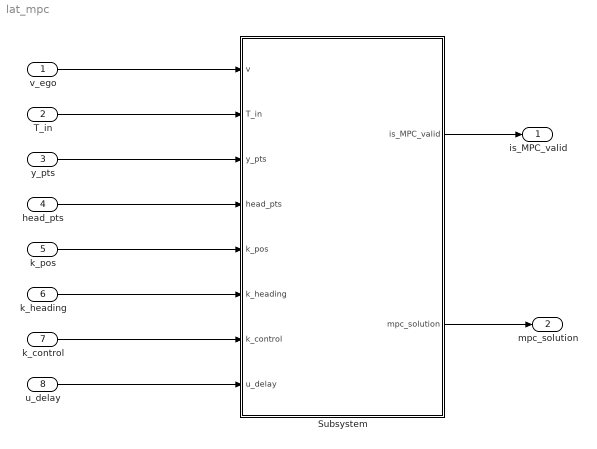
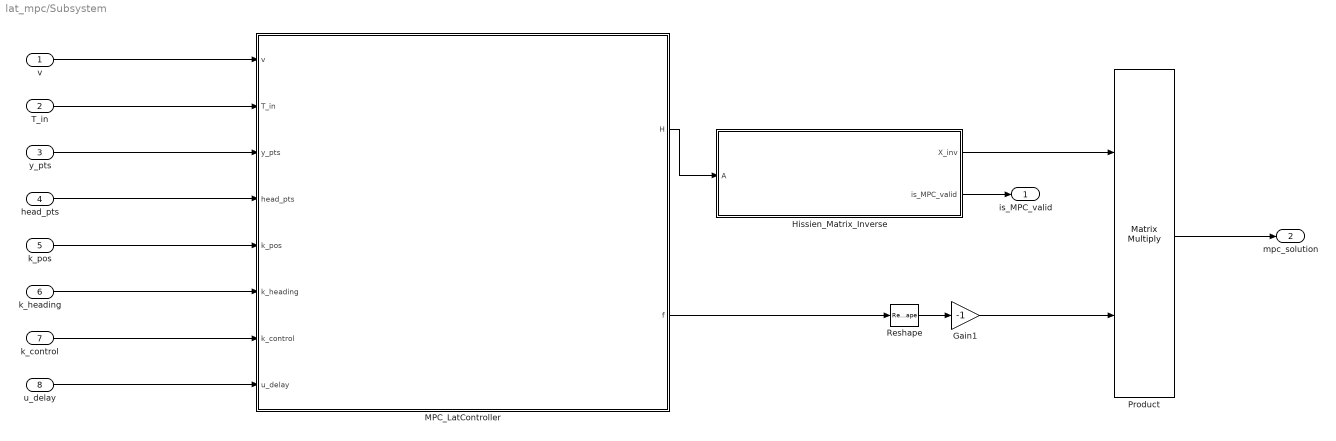
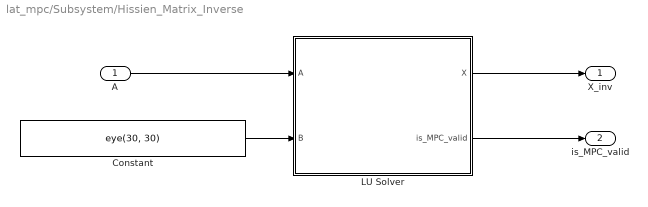
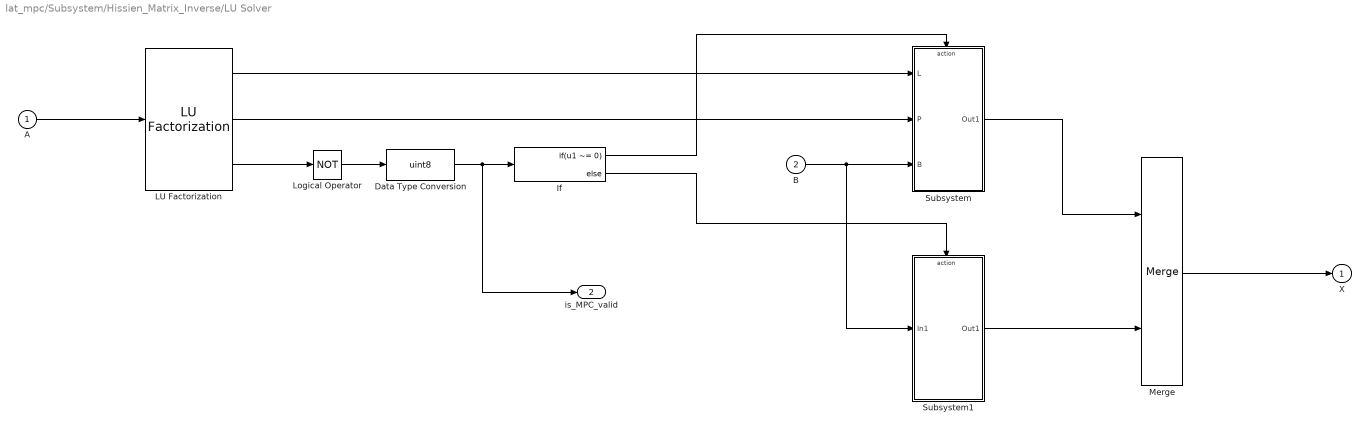
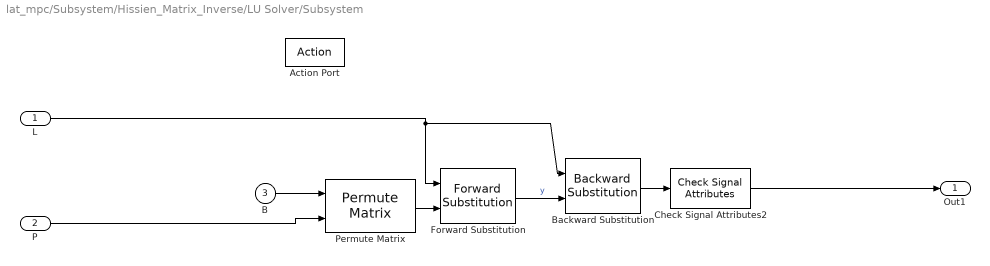
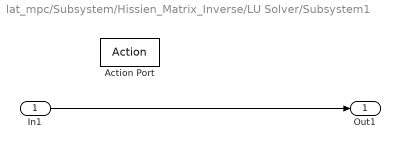
== matlab function lat_mpc/Subsystem/MPC_LatController ==
function [H, f] = fcn(v, T_in, y_pts, head_pts, k_pos, k_heading, k_control, u_delay)

%% define controller parameters
p = 30;  % mpc predicted steps 
state_len = 3; % number of states


%% matrix initialization
% Q, R weight matrix 
Q = single(zeros(state_len*p, state_len*p)); 
R = single(k_control*eye(p)); 

% state transition matrix
A = single(zeros(3,3));
B = single(zeros(3,1));
A_ = single(zeros(3,3));
B_ = single(zeros(3,1));
A_set = single(zeros(p, 3, 3));
B_set = single(zeros(p, 3, 1));

% middle layer matrix
M = single(zeros(state_len*p, state_len));
K = single(zeros(state_len*p, p));

% reference desired state 
X_ref = single(zeros(state_len*p, 1));
yawrate_ref = single(zeros(p,1));
theta_ref = single(zeros(p,1));
y_ref = single(zeros(p, 1));

% QP solver matrix
H = single(zeros(p, p));
f = single(zeros(p, 1));

%% time array caculation
T =  T_in;

% referce x array
x_ref = v.*T;

%% intial states
x = single([0; 0; u_delay]); 


%% caculate X_ref, give the value for Q,R
% control input is delta of omiga
% matrix X_
%           |  y      | 
% X_ =	    |  theta  | 
%           |  omiga  | 

% matrix A_
%           |1    v*cos(theta)   0 | 
% A_ =	    |0    1             Ts | 
%           |0    0              1 | 

% matrix B_
%           |  0  | 
% B_ =	    |  0  | 
%           |  1  | 

% if X(k+1) = A*X(k) + B*u
% |X(k+1)|  | A   B | |X(k)|   |0|
%         =          *       + |0| * delta(u)
% |u(k+1)|  | 0   1 | |u(k)|   |1|

for i=1:p
    if i==1
        Ts = T(1);
    else
        Ts = T(i) - T(i-1);
    end

    % reference state
    x_tmp = x_ref(i);
    y_ref(i) = y_pts(i);
    theta_ref(i) = head_pts(i) ;
    yawrate_ref(i) = 0;
    X_ref((i-1)*state_len + 1:state_len*i, 1) = [y_ref(i) theta_ref(i) yawrate_ref(i) ];    
    
    % update A_, B_ set
    A_ = single([1 v*cos(theta_ref(i))*Ts; 0 1]);
    B_ = single([0 ; Ts]);

    A_set(i,:,:) = single([A_ B_; 0 0 1]);
    B_set(i,:,:) = single([0; 0 ;1]);
    
    % update Q weight matrix
    Q((i-1)*state_len + 1:state_len*i,  (i-1)*state_len + 1:state_len*i) = single([k_pos 0 0; 0 k_heading 0; 0 0 0]);

end

%% caculate M, K matrix
tmp_1 = single(eye(3));
tmp_2 = single(eye(3));

% M matrix update
% |  A1
% |  A2A1
% |  A3A2A1
% ..........

% K matrix update
% |0 0 0 ... 0            0         B1|
% |0 0 0 ... 0            A2B1  B2|
% |0 0 0 ... A3A2B1 A3B2  B3|
for i=1:p
   tmp_1 = reshape(A_set(i,:,:), [3 3])*tmp_1;
   M((i-1)*state_len + 1:state_len*i, 1:state_len) = tmp_1;

      for j=i:-1:1
        if j==i
            tmp_2 = single(eye(3));
        else
            tmp_2 = tmp_2*reshape(A_set(j+1,:,:), [3 3]);
        end
       K((i-1)*state_len + 1:state_len*i, j) = tmp_2*reshape(B_set(j,:,:), [3 1]);

      end
   
      
end

%% caculate H, f matrix for QP solver
X_pre = M*x;
E = X_pre - X_ref;

H = 2*(K'*Q*K + R);
f = (2*E'*Q*K)';

end

function prv_yawrate = preview_yawrate_calc(C1, C2, C3,C4, C5, d, v)
    ddy = 2*C2 + 6*C3*d + 12*C4*d^2 + 20*C5*d^3;
    
    dy = C1 + 2*C2*d + 3*C3*d^2+ 4*C4*d^3 +5*C5*d^4  ;
    
    prv_curve = ddy/((1+dy^2)^1.5);
    
    prv_yawrate = prv_curve * v;

end

/*
 * File: lat_mpc.c
 *
 * Code generated for Simulink model 'lat_mpc'.
 *
 * Model version                  : 1.4
 * Simulink Coder version         : 9.4 (R2020b) 29-Jul-2020
 * C/C++ source code generated on : Wed Jul 13 11:30:10 2022
 *
 * Target selection: ert.tlc
 * Embedded hardware selection: Intel->x86-64 (Windows64)
 * Code generation objectives: Unspecified
 * Validation result: Not run
 */

#include "lat_mpc.h"
#include "lat_mpc_private.h"

/* Block signals (default storage) */
B_lat_mpc_T lat_mpc_B;

/* Real-time model */
static RT_MODEL_lat_mpc_T lat_mpc_M_;
RT_MODEL_lat_mpc_T *const lat_mpc_M = &lat_mpc_M_;
void LUf_boolean_Tint32_Treal32_T(real32_T outU[], real32_T outP[], int32_T N,
  boolean_T outS[])
{
  int32_T c;
  int32_T idx1;
  int32_T idx1_tmp;
  int32_T k;
  int32_T p;
  int32_T r;
  int32_T tmp;
  real32_T mTmp1;
  real32_T mTmp2;

  /* S-Function (sdsplu2): '<S4>/LU Factorization' */
  /* initialize status output */
  outS[0U] = false;

  /* initialize row-pivot indices */
  for (k = 0; k < N; k++) {
    outP[k] = (real32_T)(k + 1);
  }

  for (k = 0; k < N; k++) {
    p = k;

    /* Scan the lower triangular part of this column only. */
    /* Record row of largest value */
    idx1_tmp = k * N;
    mTmp1 = outU[idx1_tmp + k];
    if (mTmp1 < 0.0F) {
      mTmp1 = -mTmp1;
    }

    for (r = k + 1; r < N; r++) {
      mTmp2 = outU[idx1_tmp + r];
      if (mTmp2 < 0.0F) {
        mTmp2 = -mTmp2;
      }

      if (mTmp2 > mTmp1) {
        p = r;
        mTmp1 = mTmp2;
      }
    }

    /* swap rows if required */
    if (p != k) {
      for (c = 0; c < N; c++) {
        idx1 = c * N;
        r = idx1 + p;
        mTmp1 = outU[r];
        tmp = idx1 + k;
        outU[r] = outU[tmp];
        outU[tmp] = mTmp1;
      }

      /* swap pivot row indices */
      mTmp1 = outP[p];
      outP[p] = outP[k];
      outP[k] = mTmp1;
    }

    idx1 = k * N + k;
    if (outU[idx1] == 0.0F) {
      outS[0U] = true;
    } else {
      for (r = k + 1; r < N; r++) {
        tmp = idx1_tmp + r;
        outU[tmp] /= outU[idx1];
      }

      for (c = k + 1; c < N; c++) {
        idx1 = c * N;
        for (r = k + 1; r < N; r++) {
          tmp = idx1 + r;
          outU[tmp] -= outU[idx1_tmp + r] * outU[idx1 + k];
        }
      }
    }
  }

  /* End of S-Function (sdsplu2): '<S4>/LU Factorization' */
}

/* Model step function */
void lat_mpc_step(real32_T arg_v_ego, real32_T arg_T_in[30], real32_T arg_y_pts
                  [30], real32_T arg_head_pts[30], real32_T arg_k_pos, real32_T
                  arg_k_heading, real32_T arg_k_control, real32_T arg_u_delay,
                  uint8_T *arg_is_MPC_valid, real32_T arg_mpc_solution[30])
{
  static const int8_T ab[900] = { 1, 0, 0, 0, 0, 0, 0, 0, 0, 0, 0, 0, 0, 0, 0, 0,
    0, 0, 0, 0, 0, 0, 0, 0, 0, 0, 0, 0, 0, 0, 0, 1, 0, 0, 0, 0, 0, 0, 0, 0, 0, 0,
    0, 0, 0, 0, 0, 0, 0, 0, 0, 0, 0, 0, 0, 0, 0, 0, 0, 0, 0, 0, 1, 0, 0, 0, 0, 0,
    0, 0, 0, 0, 0, 0, 0, 0, 0, 0, 0, 0, 0, 0, 0, 0, 0, 0, 0, 0, 0, 0, 0, 0, 0, 1,
    0, 0, 0, 0, 0, 0, 0, 0, 0, 0, 0, 0, 0, 0, 0, 0, 0, 0, 0, 0, 0, 0, 0, 0, 0, 0,
    0, 0, 0, 0, 1, 0, 0, 0, 0, 0, 0, 0, 0, 0, 0, 0, 0, 0, 0, 0, 0, 0, 0, 0, 0, 0,
    0, 0, 0, 0, 0, 0, 0, 0, 0, 1, 0, 0, 0, 0, 0, 0, 0, 0, 0, 0, 0, 0, 0, 0, 0, 0,
    0, 0, 0, 0, 0, 0, 0, 0, 0, 0, 0, 0, 0, 0, 1, 0, 0, 0, 0, 0, 0, 0, 0, 0, 0, 0,
    0, 0, 0, 0, 0, 0, 0, 0, 0, 0, 0, 0, 0, 0, 0, 0, 0, 0, 0, 1, 0, 0, 0, 0, 0, 0,
    0, 0, 0, 0, 0, 0, 0, 0, 0, 0, 0, 0, 0, 0, 0, 0, 0, 0, 0, 0, 0, 0, 0, 0, 1, 0,
    0, 0, 0, 0, 0, 0, 0, 0, 0, 0, 0, 0, 0, 0, 0, 0, 0, 0, 0, 0, 0, 0, 0, 0, 0, 0,
    0, 0, 0, 1, 0, 0, 0, 0, 0, 0, 0, 0, 0, 0, 0, 0, 0, 0, 0, 0, 0, 0, 0, 0, 0, 0,
    0, 0, 0, 0, 0, 0, 0, 0, 1, 0, 0, 0, 0, 0, 0, 0, 0, 0, 0, 0, 0, 0, 0, 0, 0, 0,
    0, 0, 0, 0, 0, 0, 0, 0, 0, 0, 0, 0, 0, 1, 0, 0, 0, 0, 0, 0, 0, 0, 0, 0, 0, 0,
    0, 0, 0, 0, 0, 0, 0, 0, 0, 0, 0, 0, 0, 0, 0, 0, 0, 0, 1, 0, 0, 0, 0, 0, 0, 0,
    0, 0, 0, 0, 0, 0, 0, 0, 0, 0, 0, 0, 0, 0, 0, 0, 0, 0, 0, 0, 0, 0, 0, 1, 0, 0,
    0, 0, 0, 0, 0, 0, 0, 0, 0, 0, 0, 0, 0, 0, 0, 0, 0, 0, 0, 0, 0, 0, 0, 0, 0, 0,
    0, 0, 1, 0, 0, 0, 0, 0, 0, 0, 0, 0, 0, 0, 0, 0, 0, 0, 0, 0, 0, 0, 0, 0, 0, 0,
    0, 0, 0, 0, 0, 0, 0, 1, 0, 0, 0, 0, 0, 0, 0, 0, 0, 0, 0, 0, 0, 0, 0, 0, 0, 0,
    0, 0, 0, 0, 0, 0, 0, 0, 0, 0, 0, 0, 1, 0, 0, 0, 0, 0, 0, 0, 0, 0, 0, 0, 0, 0,
    0, 0, 0, 0, 0, 0, 0, 0, 0, 0, 0, 0, 0, 0, 0, 0, 0, 1, 0, 0, 0, 0, 0, 0, 0, 0,
    0, 0, 0, 0, 0, 0, 0, 0, 0, 0, 0, 0, 0, 0, 0, 0, 0, 0, 0, 0, 0, 0, 1, 0, 0, 0,
    0, 0, 0, 0, 0, 0, 0, 0, 0, 0, 0, 0, 0, 0, 0, 0, 0, 0, 0, 0, 0, 0, 0, 0, 0, 0,
    0, 1, 0, 0, 0, 0, 0, 0, 0, 0, 0, 0, 0, 0, 0, 0, 0, 0, 0, 0, 0, 0, 0, 0, 0, 0,
    0, 0, 0, 0, 0, 0, 1, 0, 0, 0, 0, 0, 0, 0, 0, 0, 0, 0, 0, 0, 0, 0, 0, 0, 0, 0,
    0, 0, 0, 0, 0, 0, 0, 0, 0, 0, 0, 1, 0, 0, 0, 0, 0, 0, 0, 0, 0, 0, 0, 0, 0, 0,
    0, 0, 0, 0, 0, 0, 0, 0, 0, 0, 0, 0, 0, 0, 0, 0, 1, 0, 0, 0, 0, 0, 0, 0, 0, 0,
    0, 0, 0, 0, 0, 0, 0, 0, 0, 0, 0, 0, 0, 0, 0, 0, 0, 0, 0, 0, 0, 1, 0, 0, 0, 0,
    0, 0, 0, 0, 0, 0, 0, 0, 0, 0, 0, 0, 0, 0, 0, 0, 0, 0, 0, 0, 0, 0, 0, 0, 0, 0,
    1, 0, 0, 0, 0, 0, 0, 0, 0, 0, 0, 0, 0, 0, 0, 0, 0, 0, 0, 0, 0, 0, 0, 0, 0, 0,
    0, 0, 0, 0, 0, 1, 0, 0, 0, 0, 0, 0, 0, 0, 0, 0, 0, 0, 0, 0, 0, 0, 0, 0, 0, 0,
    0, 0, 0, 0, 0, 0, 0, 0, 0, 0, 1, 0, 0, 0, 0, 0, 0, 0, 0, 0, 0, 0, 0, 0, 0, 0,
    0, 0, 0, 0, 0, 0, 0, 0, 0, 0, 0, 0, 0, 0, 0, 1, 0, 0, 0, 0, 0, 0, 0, 0, 0, 0,
    0, 0, 0, 0, 0, 0, 0, 0, 0, 0, 0, 0, 0, 0, 0, 0, 0, 0, 0, 0, 1, 0, 0, 0, 0, 0,
    0, 0, 0, 0, 0, 0, 0, 0, 0, 0, 0, 0, 0, 0, 0, 0, 0, 0, 0, 0, 0, 0, 0, 0, 0, 1
  };

  static const int8_T y[3] = { 0, 0, 1 };

  int32_T g_tmp;
  int32_T h_tmp;
  int32_T i;
  int32_T k;
  int32_T l;
  int32_T loop_ub;
  int32_T loop_ub_0;
  int32_T p;
  int32_T s_idx_1;
  int32_T tmp_2_tmp;
  real32_T K[900];
  real32_T rtb_BackwardSubstitution[900];
  real32_T rtb_LUFactorization_o1[900];
  real32_T A_set[270];
  real32_T M[270];
  real32_T X_ref[90];
  real32_T tmp[90];
  real32_T rtb_LUFactorization_o2[30];
  real32_T A_set_0[9];
  real32_T tmp_1[9];
  real32_T tmp_2[9];
  real32_T y_ref[3];
  real32_T tmp_data[2];
  real32_T Ts;
  real32_T theta_ref;
  int8_T B_set[90];
  int8_T b_I[9];
  boolean_T rtb_LogicalOperator;

  /* MATLAB Function: '<S1>/MPC_LatController' incorporates:
   *  Inport: '<Root>/T_in'
   *  Inport: '<Root>/head_pts'
   *  Inport: '<Root>/k_control'
   *  Inport: '<Root>/k_heading'
   *  Inport: '<Root>/k_pos'
   *  Inport: '<Root>/v_ego'
   *  Inport: '<Root>/y_pts'
   */
  memset(&lat_mpc_B.Q[0], 0, 8100U * sizeof(real32_T));
  memset(&M[0], 0, 270U * sizeof(real32_T));
  memset(&lat_mpc_B.K[0], 0, 2700U * sizeof(real32_T));
  memset(&X_ref[0], 0, 90U * sizeof(real32_T));
  y_ref[2] = 0.0F;
  tmp_data[0] = 0.0F;
  tmp_1[0] = arg_k_pos;
  tmp_1[3] = 0.0F;
  tmp_1[6] = 0.0F;
  tmp_1[1] = 0.0F;
  tmp_1[4] = arg_k_heading;
  tmp_1[7] = 0.0F;
  tmp_1[2] = 0.0F;
  tmp_1[5] = 0.0F;
  tmp_1[8] = 0.0F;
  for (i = 0; i < 30; i++) {
    if (i + 1 == 1) {
      Ts = arg_T_in[0];
    } else {
      Ts = arg_T_in[i] - arg_T_in[i - 1];
    }

    theta_ref = arg_head_pts[i];
    g_tmp = i * 3;
    h_tmp = (i + 1) * 3;
    if (g_tmp + 1 > h_tmp) {
      l = 0;
      k = 0;
    } else {
      l = g_tmp;
      k = h_tmp;
    }

    y_ref[0] = arg_y_pts[i];
    y_ref[1] = theta_ref;
    loop_ub = k - l;
    for (k = 0; k < loop_ub; k++) {
      X_ref[l + k] = y_ref[k];
    }

    tmp_data[1] = Ts;
    tmp_2[0] = 1.0F;
    tmp_2[3] = arg_v_ego * cosf(theta_ref) * Ts;
    tmp_2[1] = 0.0F;
    tmp_2[4] = 1.0F;
    for (k = 0; k < 2; k++) {
      tmp_2[k + 6] = tmp_data[k];
    }

    tmp_2[2] = 0.0F;
    tmp_2[5] = 0.0F;
    tmp_2[8] = 1.0F;
    for (k = 0; k < 3; k++) {
      l = i + 90 * k;
      A_set[l] = tmp_2[3 * k];
      A_set[l + 30] = tmp_2[3 * k + 1];
      A_set[l + 60] = tmp_2[3 * k + 2];
      B_set[i + 30 * k] = y[k];
    }

    if (g_tmp + 1 > h_tmp) {
      l = 0;
      k = 0;
      g_tmp = 0;
      h_tmp = 0;
    } else {
      l = g_tmp;
      k = h_tmp;
    }

    loop_ub = k - l;
    s_idx_1 = h_tmp - g_tmp;
    for (k = 0; k < s_idx_1; k++) {
      for (h_tmp = 0; h_tmp < loop_ub; h_tmp++) {
        lat_mpc_B.Q[(l + h_tmp) + 90 * (g_tmp + k)] = tmp_1[loop_ub * k + h_tmp];
      }
    }
  }

  for (k = 0; k < 9; k++) {
    b_I[k] = 0;
  }

  b_I[0] = 1;
  b_I[4] = 1;
  b_I[8] = 1;
  for (k = 0; k < 9; k++) {
    tmp_1[k] = b_I[k];
    b_I[k] = 0;
  }

  b_I[0] = 1;
  b_I[4] = 1;
  b_I[8] = 1;
  for (k = 0; k < 9; k++) {
    tmp_2[k] = b_I[k];
  }

  for (i = 0; i < 30; i++) {
    for (k = 0; k < 3; k++) {
      for (h_tmp = 0; h_tmp < 3; h_tmp++) {
        l = k + 3 * h_tmp;
        A_set_0[l] = 0.0F;
        g_tmp = 30 * k + i;
        A_set_0[l] += A_set[g_tmp] * tmp_1[3 * h_tmp];
        A_set_0[l] += A_set[g_tmp + 90] * tmp_1[3 * h_tmp + 1];
        A_set_0[l] += A_set[g_tmp + 180] * tmp_1[3 * h_tmp + 2];
      }
    }

    for (k = 0; k < 9; k++) {
      tmp_1[k] = A_set_0[k];
    }

    g_tmp = i * 3;
    loop_ub = (i + 1) * 3;
    if (g_tmp + 1 > loop_ub) {
      l = 0;
      k = 0;
    } else {
      l = g_tmp;
      k = loop_ub;
    }

    s_idx_1 = k - l;
    for (k = 0; k < 3; k++) {
      for (h_tmp = 0; h_tmp < s_idx_1; h_tmp++) {
        M[(l + h_tmp) + 90 * k] = tmp_1[s_idx_1 * k + h_tmp];
      }
    }

    l = (int32_T)(((-1.0 - ((real_T)i + 1.0)) + 1.0) / -1.0);
    if (0 <= l - 1) {
      if (g_tmp + 1 > loop_ub) {
        p = 0;
        loop_ub = 0;
      } else {
        p = g_tmp;
      }

      loop_ub_0 = loop_ub - p;
    }

    for (loop_ub = 0; loop_ub < l; loop_ub++) {
      g_tmp = (i - loop_ub) + 1;
      if (i + 1 == g_tmp) {
        for (k = 0; k < 9; k++) {
          b_I[k] = 0;
        }

        b_I[0] = 1;
        b_I[4] = 1;
        b_I[8] = 1;
        for (k = 0; k < 9; k++) {
          tmp_2[k] = b_I[k];
        }
      } else {
        for (k = 0; k < 3; k++) {
          for (h_tmp = 0; h_tmp < 3; h_tmp++) {
            s_idx_1 = k + 3 * h_tmp;
            A_set_0[s_idx_1] = 0.0F;
            tmp_2_tmp = 90 * h_tmp + g_tmp;
            A_set_0[s_idx_1] += A_set[tmp_2_tmp] * tmp_2[k];
            A_set_0[s_idx_1] += A_set[tmp_2_tmp + 30] * tmp_2[k + 3];
            A_set_0[s_idx_1] += A_set[tmp_2_tmp + 60] * tmp_2[k + 6];
          }
        }

        for (k = 0; k < 9; k++) {
          tmp_2[k] = A_set_0[k];
        }
      }

      for (k = 0; k < 3; k++) {
        y_ref[k] = tmp_2[k + 6] * (real32_T)B_set[g_tmp + 59] + (tmp_2[k + 3] *
          (real32_T)B_set[g_tmp + 29] + (real32_T)B_set[g_tmp - 1] * tmp_2[k]);
      }

      for (k = 0; k < loop_ub_0; k++) {
        lat_mpc_B.K[(p + k) + 90 * (g_tmp - 1)] = y_ref[k];
      }
    }
  }

  for (k = 0; k < 30; k++) {
    for (h_tmp = 0; h_tmp < 90; h_tmp++) {
      p = k + 30 * h_tmp;
      lat_mpc_B.K_m[p] = 0.0F;
      for (loop_ub_0 = 0; loop_ub_0 < 90; loop_ub_0++) {
        lat_mpc_B.K_m[p] += lat_mpc_B.K[90 * k + loop_ub_0] * lat_mpc_B.Q[90 *
          h_tmp + loop_ub_0];
      }
    }

    for (h_tmp = 0; h_tmp < 30; h_tmp++) {
      Ts = 0.0F;
      for (loop_ub_0 = 0; loop_ub_0 < 90; loop_ub_0++) {
        Ts += lat_mpc_B.K_m[30 * loop_ub_0 + k] * lat_mpc_B.K[90 * h_tmp +
          loop_ub_0];
      }

      p = 30 * h_tmp + k;
      K[p] = (real32_T)ab[p] * arg_k_control + Ts;
    }
  }

  for (k = 0; k < 900; k++) {
    /* S-Function (sdsplu2): '<S4>/LU Factorization' */
    rtb_LUFactorization_o1[k] = 2.0F * K[k];
  }

  /* S-Function (sdsplu2): '<S4>/LU Factorization' */
  LUf_boolean_Tint32_Treal32_T(&rtb_LUFactorization_o1[0],
    &rtb_LUFactorization_o2[0], 30, &rtb_LogicalOperator);

  /* Logic: '<S4>/Logical Operator' */
  rtb_LogicalOperator = !rtb_LogicalOperator;

  /* Outport: '<Root>/is_MPC_valid' incorporates:
   *  DataTypeConversion: '<S4>/Data Type Conversion'
   */
  *arg_is_MPC_valid = rtb_LogicalOperator;

  /* If: '<S4>/If' incorporates:
   *  Constant: '<S2>/Constant'
   *  DataTypeConversion: '<S4>/Data Type Conversion'
   *  Inport: '<S6>/In1'
   *  Merge: '<S4>/Merge'
   */
  if (rtb_LogicalOperator) {
    /* Outputs for IfAction SubSystem: '<S4>/Subsystem' incorporates:
     *  ActionPort: '<S5>/Action Port'
     */
    /* S-Function (sdspperm2): '<S5>/Permute Matrix' incorporates:
     *  Constant: '<S2>/Constant'
     *  S-Function (sdspfbsub2): '<S5>/Backward Substitution'
     */
    for (p = 0; p < 30; p++) {
      loop_ub_0 = (int32_T)floorf(rtb_LUFactorization_o2[p]) - 1;
      if (loop_ub_0 < 0) {
        loop_ub_0 = 0;
      } else {
        if (loop_ub_0 >= 30) {
          loop_ub_0 = 29;
        }
      }

      for (k = 0; k < 30; k++) {
        rtb_BackwardSubstitution[30 * k + p] = lat_mpc_ConstP.Constant_Value[30 *
          k + loop_ub_0];
      }
    }

    /* End of S-Function (sdspperm2): '<S5>/Permute Matrix' */

    /* S-Function (sdspfbsub2): '<S5>/Forward Substitution' incorporates:
     *  S-Function (sdspfbsub2): '<S5>/Backward Substitution'
     *  S-Function (sdsplu2): '<S4>/LU Factorization'
     */
    for (g_tmp = 0; g_tmp < 30; g_tmp++) {
      p = g_tmp * 30;
      for (i = 0; i < 29; i++) {
        loop_ub_0 = i + 1;
        h_tmp = (p + i) + 1;
        Ts = rtb_BackwardSubstitution[h_tmp];
        for (k = 0; k < i + 1; k++) {
          Ts -= rtb_BackwardSubstitution[p + k] *
            rtb_LUFactorization_o1[loop_ub_0];
          loop_ub_0 += 30;
        }

        rtb_BackwardSubstitution[h_tmp] = Ts;
      }
    }

    /* End of S-Function (sdspfbsub2): '<S5>/Forward Substitution' */

    /* S-Function (sdspfbsub2): '<S5>/Backward Substitution' incorporates:
     *  S-Function (sdsplu2): '<S4>/LU Factorization'
     */
    for (g_tmp = 0; g_tmp < 30; g_tmp++) {
      p = g_tmp * 30;
      rtb_BackwardSubstitution[p + 29] /= rtb_LUFactorization_o1[899];
      for (i = 28; i >= 0; i--) {
        loop_ub_0 = i + 870;
        h_tmp = p + i;
        Ts = rtb_BackwardSubstitution[h_tmp];
        for (k = 29; k > i; k--) {
          Ts -= rtb_BackwardSubstitution[p + k] *
            rtb_LUFactorization_o1[loop_ub_0];
          loop_ub_0 -= 30;
        }

        rtb_BackwardSubstitution[h_tmp] = Ts / rtb_LUFactorization_o1[loop_ub_0];
      }
    }

    /* End of S-Function (sdspfbsub2): '<S5>/Backward Substitution' */
    /* End of Outputs for SubSystem: '<S4>/Subsystem' */
  } else {
    /* Outputs for IfAction SubSystem: '<S4>/Subsystem1' incorporates:
     *  ActionPort: '<S6>/Action Port'
     */
    memcpy(&rtb_BackwardSubstitution[0], &lat_mpc_ConstP.Constant_Value[0], 900U
           * sizeof(real32_T));

    /* End of Outputs for SubSystem: '<S4>/Subsystem1' */
  }

  /* End of If: '<S4>/If' */

  /* MATLAB Function: '<S1>/MPC_LatController' incorporates:
   *  Inport: '<Root>/u_delay'
   */
  for (k = 0; k < 90; k++) {
    tmp[k] = ((M[k + 180] * arg_u_delay + (M[k + 90] * 0.0F + M[k] * 0.0F)) -
              X_ref[k]) * 2.0F;
  }

  for (k = 0; k < 90; k++) {
    X_ref[k] = 0.0F;
    for (h_tmp = 0; h_tmp < 90; h_tmp++) {
      X_ref[k] += lat_mpc_B.Q[90 * k + h_tmp] * tmp[h_tmp];
    }
  }

  for (k = 0; k < 30; k++) {
    rtb_LUFactorization_o2[k] = 0.0F;
    for (h_tmp = 0; h_tmp < 90; h_tmp++) {
      rtb_LUFactorization_o2[k] += lat_mpc_B.K[90 * k + h_tmp] * X_ref[h_tmp];
    }
  }

  /* Outport: '<Root>/mpc_solution' incorporates:
   *  Gain: '<S1>/Gain1'
   *  Merge: '<S4>/Merge'
   *  Product: '<S1>/Product'
   */
  for (k = 0; k < 30; k++) {
    arg_mpc_solution[k] = 0.0F;
    for (h_tmp = 0; h_tmp < 30; h_tmp++) {
      arg_mpc_solution[k] += rtb_BackwardSubstitution[30 * h_tmp + k] *
        -rtb_LUFactorization_o2[h_tmp];
    }
  }

  /* End of Outport: '<Root>/mpc_solution' */
}
